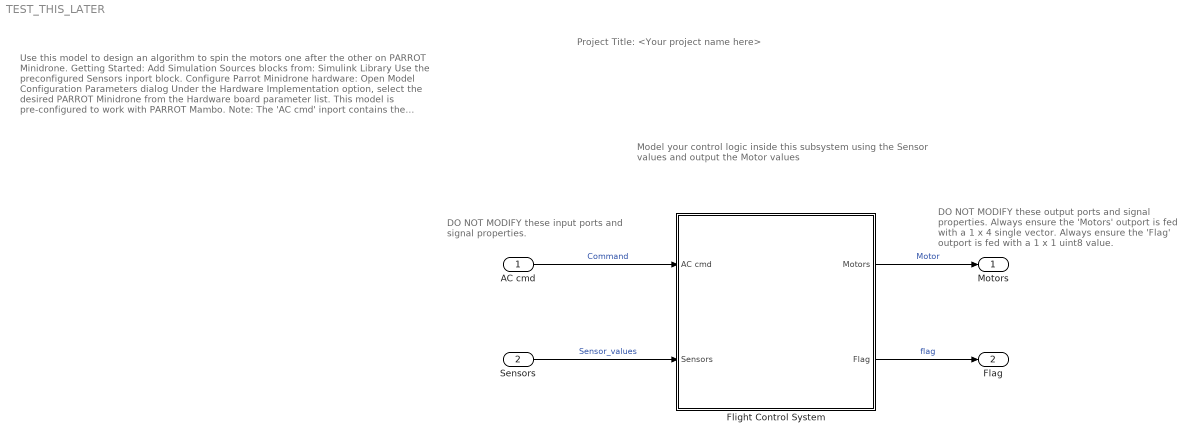
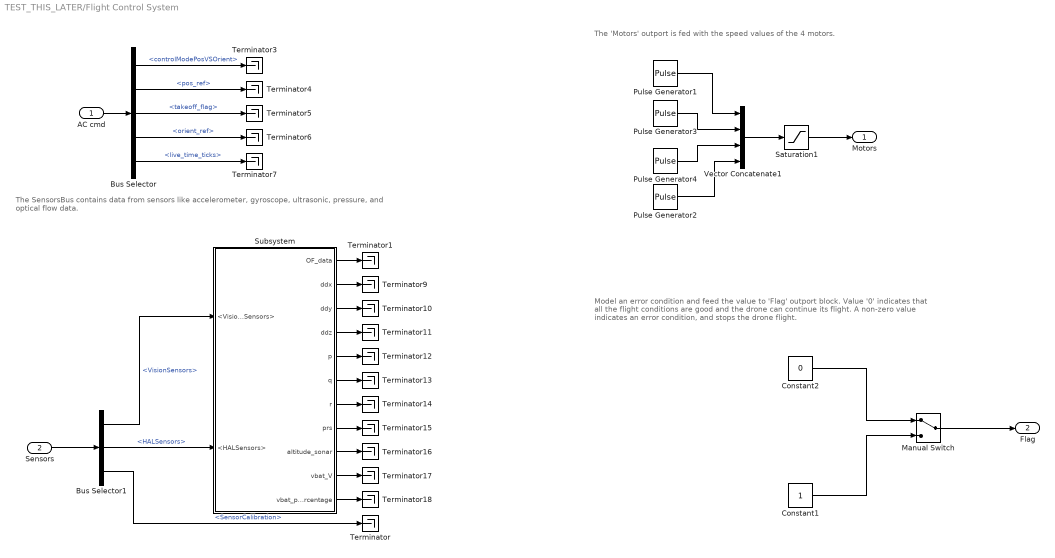
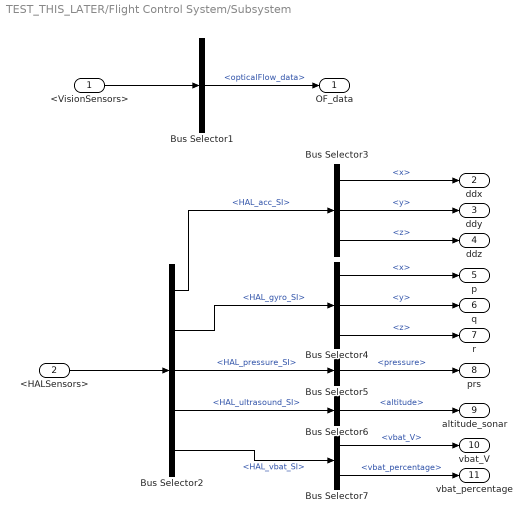
/*
 * TEST_THIS_LATER.c
 *
 * Academic License - for use in teaching, academic research, and meeting
 * course requirements at degree granting institutions only.  Not for
 * government, commercial, or other organizational use.
 *
 * Code generation for model "TEST_THIS_LATER".
 *
 * Model version              : 1.1
 * Simulink Coder version : 9.5 (R2021a) 14-Nov-2020
 * C source code generated on : Mon Nov 29 15:16:02 2021
 *
 * Target selection: ert.tlc
 * Note: GRT includes extra infrastructure and instrumentation for prototyping
 * Embedded hardware selection: ARM Compatible->ARM 9
 * Code generation objectives: Unspecified
 * Validation result: Not run
 */

#include "TEST_THIS_LATER.h"
#include "TEST_THIS_LATER_private.h"

/* Exported block signals */
CommandBus cmd_inport;                 /* '<Root>/AC cmd' */
SensorsBus sensor_inport;              /* '<Root>/Sensors' */
real32_T motors_outport[4];            /* '<S1>/Saturation1' */
uint8_T flag_outport;                  /* '<S1>/Manual Switch' */

/* Block states (default storage) */
DW_TEST_THIS_LATER_T TEST_THIS_LATER_DW;

/* External outputs (root outports fed by signals with default storage) */
ExtY_TEST_THIS_LATER_T TEST_THIS_LATER_Y;

/* Real-time model */
static RT_MODEL_TEST_THIS_LATER_T TEST_THIS_LATER_M_;
RT_MODEL_TEST_THIS_LATER_T *const TEST_THIS_LATER_M = &TEST_THIS_LATER_M_;

/* Model step function */
void TEST_THIS_LATER_step(void)
{
  real_T rtb_VectorConcatenate1_idx_0;
  real_T rtb_VectorConcatenate1_idx_1;
  real_T rtb_VectorConcatenate1_idx_2;
  real_T rtb_VectorConcatenate1_idx_3;

  /* DiscretePulseGenerator: '<S1>/Pulse Generator1' */
  rtb_VectorConcatenate1_idx_0 = (TEST_THIS_LATER_DW.clockTickCounter <
    TEST_THIS_LATER_P.PulseGenerator1_Duty) &&
    (TEST_THIS_LATER_DW.clockTickCounter >= 0) ?
    TEST_THIS_LATER_P.PulseGenerator1_Amp : 0.0;
  if (TEST_THIS_LATER_DW.clockTickCounter >=
      TEST_THIS_LATER_P.PulseGenerator1_Period - 1.0) {
    TEST_THIS_LATER_DW.clockTickCounter = 0;
  } else {
    TEST_THIS_LATER_DW.clockTickCounter++;
  }

  /* End of DiscretePulseGenerator: '<S1>/Pulse Generator1' */

  /* DiscretePulseGenerator: '<S1>/Pulse Generator3' */
  rtb_VectorConcatenate1_idx_1 = (TEST_THIS_LATER_DW.clockTickCounter_h <
    TEST_THIS_LATER_P.PulseGenerator3_Duty) &&
    (TEST_THIS_LATER_DW.clockTickCounter_h >= 0) ?
    TEST_THIS_LATER_P.PulseGenerator3_Amp : 0.0;
  if (TEST_THIS_LATER_DW.clockTickCounter_h >=
      TEST_THIS_LATER_P.PulseGenerator3_Period - 1.0) {
    TEST_THIS_LATER_DW.clockTickCounter_h = 0;
  } else {
    TEST_THIS_LATER_DW.clockTickCounter_h++;
  }

  /* End of DiscretePulseGenerator: '<S1>/Pulse Generator3' */

  /* DiscretePulseGenerator: '<S1>/Pulse Generator4' */
  rtb_VectorConcatenate1_idx_2 = (TEST_THIS_LATER_DW.clockTickCounter_a <
    TEST_THIS_LATER_P.PulseGenerator4_Duty) &&
    (TEST_THIS_LATER_DW.clockTickCounter_a >= 0) ?
    TEST_THIS_LATER_P.PulseGenerator4_Amp : 0.0;
  if (TEST_THIS_LATER_DW.clockTickCounter_a >=
      TEST_THIS_LATER_P.PulseGenerator4_Period - 1.0) {
    TEST_THIS_LATER_DW.clockTickCounter_a = 0;
  } else {
    TEST_THIS_LATER_DW.clockTickCounter_a++;
  }

  /* End of DiscretePulseGenerator: '<S1>/Pulse Generator4' */

  /* DiscretePulseGenerator: '<S1>/Pulse Generator2' */
  rtb_VectorConcatenate1_idx_3 = (TEST_THIS_LATER_DW.clockTickCounter_n <
    TEST_THIS_LATER_P.PulseGenerator2_Duty) &&
    (TEST_THIS_LATER_DW.clockTickCounter_n >= 0) ?
    TEST_THIS_LATER_P.PulseGenerator2_Amp : 0.0;
  if (TEST_THIS_LATER_DW.clockTickCounter_n >=
      TEST_THIS_LATER_P.PulseGenerator2_Period - 1.0) {
    TEST_THIS_LATER_DW.clockTickCounter_n = 0;
  } else {
    TEST_THIS_LATER_DW.clockTickCounter_n++;
  }

  /* End of DiscretePulseGenerator: '<S1>/Pulse Generator2' */

  /* Saturate: '<S1>/Saturation1' */
  if (rtb_VectorConcatenate1_idx_0 > TEST_THIS_LATER_P.Saturation1_UpperSat) {
    /* Saturate: '<S1>/Saturation1' */
    motors_outport[0] = TEST_THIS_LATER_P.Saturation1_UpperSat;
  } else if (rtb_VectorConcatenate1_idx_0 <
             TEST_THIS_LATER_P.Saturation1_LowerSat) {
    /* Saturate: '<S1>/Saturation1' */
    motors_outport[0] = TEST_THIS_LATER_P.Saturation1_LowerSat;
  } else {
    /* Saturate: '<S1>/Saturation1' */
    motors_outport[0] = (real32_T)rtb_VectorConcatenate1_idx_0;
  }

  /* Outport: '<Root>/Motors' incorporates:
   *  Saturate: '<S1>/Saturation1'
   */
  TEST_THIS_LATER_Y.Motors[0] = motors_outport[0];

  /* Saturate: '<S1>/Saturation1' */
  if (rtb_VectorConcatenate1_idx_1 > TEST_THIS_LATER_P.Saturation1_UpperSat) {
    /* Saturate: '<S1>/Saturation1' */
    motors_outport[1] = TEST_THIS_LATER_P.Saturation1_UpperSat;
  } else if (rtb_VectorConcatenate1_idx_1 <
             TEST_THIS_LATER_P.Saturation1_LowerSat) {
    /* Saturate: '<S1>/Saturation1' */
    motors_outport[1] = TEST_THIS_LATER_P.Saturation1_LowerSat;
  } else {
    /* Saturate: '<S1>/Saturation1' */
    motors_outport[1] = (real32_T)rtb_VectorConcatenate1_idx_1;
  }

  /* Outport: '<Root>/Motors' incorporates:
   *  Saturate: '<S1>/Saturation1'
   */
  TEST_THIS_LATER_Y.Motors[1] = motors_outport[1];

  /* Saturate: '<S1>/Saturation1' */
  if (rtb_VectorConcatenate1_idx_2 > TEST_THIS_LATER_P.Saturation1_UpperSat) {
    /* Saturate: '<S1>/Saturation1' */
    motors_outport[2] = TEST_THIS_LATER_P.Saturation1_UpperSat;
  } else if (rtb_VectorConcatenate1_idx_2 <
             TEST_THIS_LATER_P.Saturation1_LowerSat) {
    /* Saturate: '<S1>/Saturation1' */
    motors_outport[2] = TEST_THIS_LATER_P.Saturation1_LowerSat;
  } else {
    /* Saturate: '<S1>/Saturation1' */
    motors_outport[2] = (real32_T)rtb_VectorConcatenate1_idx_2;
  }

  /* Outport: '<Root>/Motors' incorporates:
   *  Saturate: '<S1>/Saturation1'
   */
  TEST_THIS_LATER_Y.Motors[2] = motors_outport[2];

  /* Saturate: '<S1>/Saturation1' */
  if (rtb_VectorConcatenate1_idx_3 > TEST_THIS_LATER_P.Saturation1_UpperSat) {
    /* Saturate: '<S1>/Saturation1' */
    motors_outport[3] = TEST_THIS_LATER_P.Saturation1_UpperSat;
  } else if (rtb_VectorConcatenate1_idx_3 <
             TEST_THIS_LATER_P.Saturation1_LowerSat) {
    /* Saturate: '<S1>/Saturation1' */
    motors_outport[3] = TEST_THIS_LATER_P.Saturation1_LowerSat;
  } else {
    /* Saturate: '<S1>/Saturation1' */
    motors_outport[3] = (real32_T)rtb_VectorConcatenate1_idx_3;
  }

  /* Outport: '<Root>/Motors' incorporates:
   *  Saturate: '<S1>/Saturation1'
   */
  TEST_THIS_LATER_Y.Motors[3] = motors_outport[3];

  /* ManualSwitch: '<S1>/Manual Switch' */
  if (TEST_THIS_LATER_P.ManualSwitch_CurrentSetting == 1) {
    /* ManualSwitch: '<S1>/Manual Switch' incorporates:
     *  Constant: '<S1>/Constant2'
     */
    flag_outport = TEST_THIS_LATER_P.Constant2_Value;
  } else {
    /* ManualSwitch: '<S1>/Manual Switch' incorporates:
     *  Constant: '<S1>/Constant1'
     */
    flag_outport = TEST_THIS_LATER_P.Constant1_Value;
  }

  /* End of ManualSwitch: '<S1>/Manual Switch' */

  /* Outport: '<Root>/Flag' */
  TEST_THIS_LATER_Y.Flag = flag_outport;

  /* Matfile logging */
  rt_UpdateTXYLogVars(TEST_THIS_LATER_M->rtwLogInfo,
                      (&TEST_THIS_LATER_M->Timing.taskTime0));

  /* signal main to stop simulation */
  {                                    /* Sample time: [0.005s, 0.0s] */
    if ((rtmGetTFinal(TEST_THIS_LATER_M)!=-1) &&
        !((rtmGetTFinal(TEST_THIS_LATER_M)-TEST_THIS_LATER_M->Timing.taskTime0) >
          TEST_THIS_LATER_M->Timing.taskTime0 * (DBL_EPSILON))) {
      rtmSetErrorStatus(TEST_THIS_LATER_M, "Simulation finished");
    }
  }

  /* Update absolute time for base rate */
  /* The "clockTick0" counts the number of times the code of this task has
   * been executed. The absolute time is the multiplication of "clockTick0"
   * and "Timing.stepSize0". Size of "clockTick0" ensures timer will not
   * overflow during the application lifespan selected.
   * Timer of this task consists of two 32 bit unsigned integers.
   * The two integers represent the low bits Timing.clockTick0 and the high bits
   * Timing.clockTickH0. When the low bit overflows to 0, the high bits increment.
   */
  if (!(++TEST_THIS_LATER_M->Timing.clockTick0)) {
    ++TEST_THIS_LATER_M->Timing.clockTickH0;
  }

  TEST_THIS_LATER_M->Timing.taskTime0 = TEST_THIS_LATER_M->Timing.clockTick0 *
    TEST_THIS_LATER_M->Timing.stepSize0 + TEST_THIS_LATER_M->Timing.clockTickH0 *
    TEST_THIS_LATER_M->Timing.stepSize0 * 4294967296.0;
}
